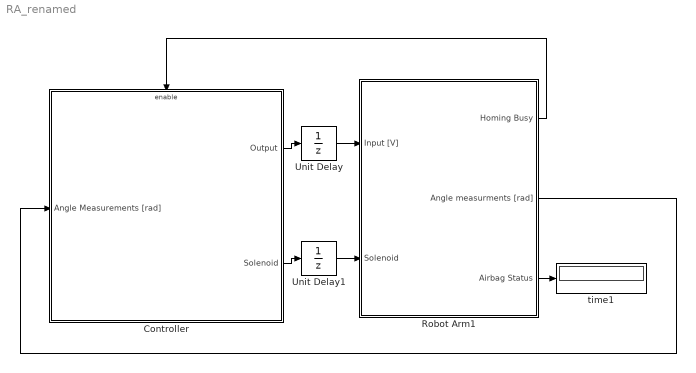
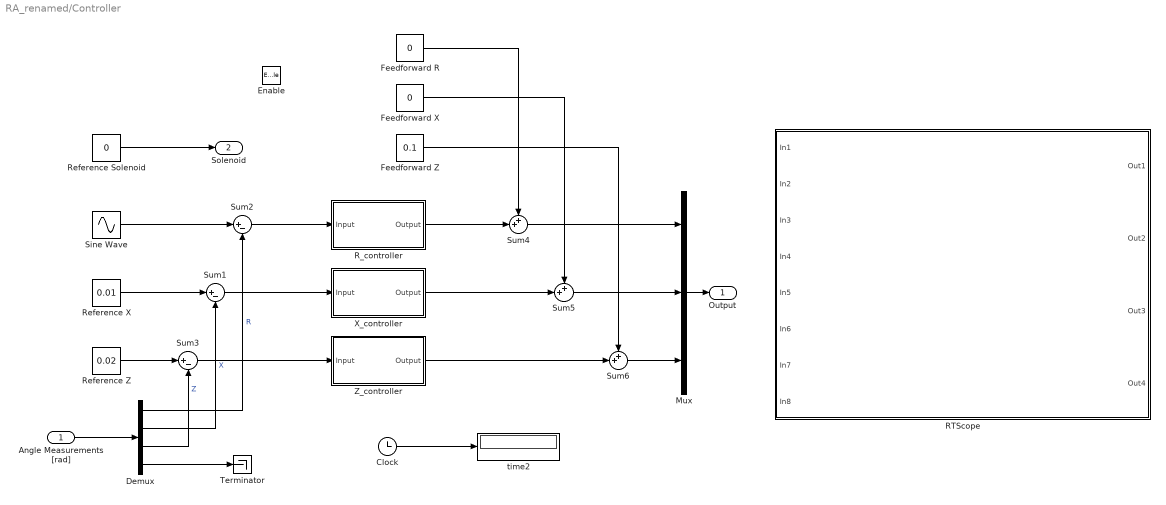
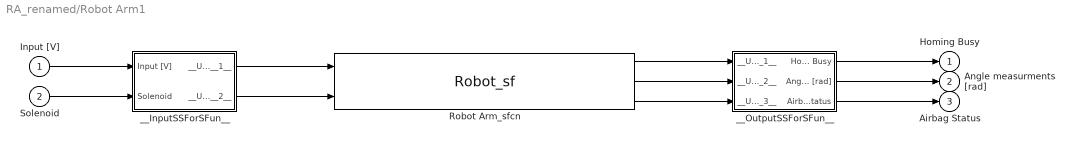
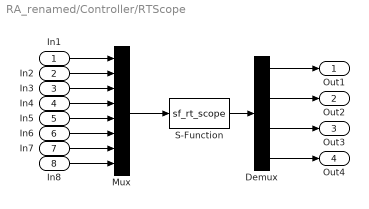
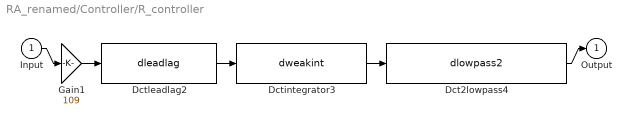
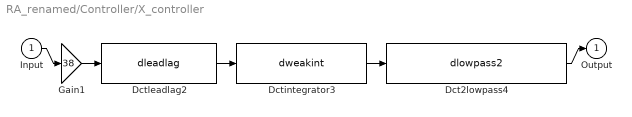
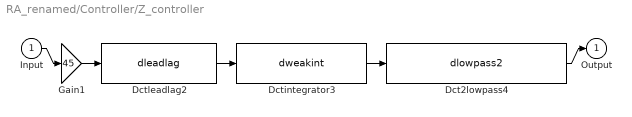
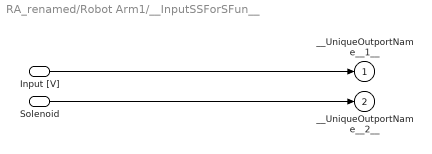
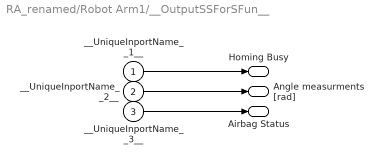
/*
 * RA_renamed.c
 *
 * Academic License - for use in teaching, academic research, and meeting
 * course requirements at degree granting institutions only.  Not for
 * government, commercial, or other organizational use.
 *
 * Code generation for model "RA_renamed".
 *
 * Model version              : 1.934
 * Simulink Coder version : 8.9 (R2015b) 13-Aug-2015
 * C source code generated on : Fri Apr  8 10:16:18 2016
 *
 * Target selection: ectarget.tlc
 * Note: GRT includes extra infrastructure and instrumentation for prototyping
 * Embedded hardware selection: 32-bit Generic
 * Code generation objectives: Unspecified
 * Validation result: Not run
 */

#include "RA_renamed.h"
#include "RA_renamed_private.h"
#include "RA_renamed_dt.h"
#undef S_FUNCTION_NAME
#if !defined(RTW_GENERATED_SFCN_TUNABLE_PRMS_Robot_sf)
#define RTW_GENERATED_SFCN_TUNABLE_PRMS_Robot_sf
#endif

#include "Robot_sf.h"

const real_T RA_renamed_RGND = 0.0;    /* real_T ground */

/* Block signals (auto storage) */
B_RA_renamed_T RA_renamed_B;

/* Block states (auto storage) */
DW_RA_renamed_T RA_renamed_DW;

/* Real-time model */
RT_MODEL_RA_renamed_T RA_renamed_M_;
RT_MODEL_RA_renamed_T *const RA_renamed_M = &RA_renamed_M_;

/* Model output function */
void RA_renamed_output(void)
{
  /* Reset subsysRan breadcrumbs */
  srClearBC(RA_renamed_DW.Controller_SubsysRanBC);

  /* UnitDelay: '<Root>/Unit Delay' */
  RA_renamed_B.UnitDelay[0] = RA_renamed_DW.UnitDelay_DSTATE[0];
  RA_renamed_B.UnitDelay[1] = RA_renamed_DW.UnitDelay_DSTATE[1];
  RA_renamed_B.UnitDelay[2] = RA_renamed_DW.UnitDelay_DSTATE[2];

  /* UnitDelay: '<Root>/Unit Delay1' */
  RA_renamed_B.UnitDelay1 = RA_renamed_DW.UnitDelay1_DSTATE;

  /* RTW Generated Level2 S-Function Block: '<S2>/Robot Arm_sfcn' (Robot_sf) */
  {
    SimStruct *rts = RA_renamed_M->childSfunctions[10];
    sfcnOutputs(rts, 0);
  }

  /* Outputs for Enabled SubSystem: '<Root>/Controller' incorporates:
   *  EnablePort: '<S1>/Enable'
   */
  if (RA_renamed_B.RobotArm_sfcn_o1 > 0.0) {
    if (!RA_renamed_DW.Controller_MODE) {
      RA_renamed_DW.Controller_MODE = true;
    }
  } else {
    if (RA_renamed_DW.Controller_MODE) {
      RA_renamed_DW.Controller_MODE = false;
    }
  }

  if (RA_renamed_DW.Controller_MODE) {
    /* Gain: '<S4>/Gain1' incorporates:
     *  Sin: '<S1>/Sine Wave'
     *  Sum: '<S1>/Sum2'
     */
    RA_renamed_B.Gain1 = ((sin(RA_renamed_P.SineWave_Freq *
      RA_renamed_M->Timing.t[0] + RA_renamed_P.SineWave_Phase) *
      RA_renamed_P.SineWave_Amp + RA_renamed_P.SineWave_Bias) -
                          RA_renamed_B.RobotArm_sfcn_o2[0]) *
      RA_renamed_P.Gain1_Gain;

    /* Level2 S-Function Block: '<S4>/Dctleadlag2' (dleadlag) */
    {
      SimStruct *rts = RA_renamed_M->childSfunctions[0];
      sfcnOutputs(rts, 1);
    }

    /* Level2 S-Function Block: '<S4>/Dctintegrator3' (dweakint) */
    {
      SimStruct *rts = RA_renamed_M->childSfunctions[1];
      sfcnOutputs(rts, 1);
    }

    /* Level2 S-Function Block: '<S4>/Dct2lowpass4' (dlowpass2) */
    {
      SimStruct *rts = RA_renamed_M->childSfunctions[2];
      sfcnOutputs(rts, 1);
    }

    /* Sum: '<S1>/Sum4' incorporates:
     *  Constant: '<S1>/Feedforward R'
     */
    RA_renamed_B.Sum4 = RA_renamed_P.FeedforwardR_Value +
      RA_renamed_B.Dct2lowpass4;

    /* Gain: '<S5>/Gain1' incorporates:
     *  Constant: '<S1>/Reference X'
     *  Sum: '<S1>/Sum1'
     */
    RA_renamed_B.Gain1_a = (RA_renamed_P.ReferenceX_Value -
      RA_renamed_B.RobotArm_sfcn_o2[1]) * RA_renamed_P.Gain1_Gain_c;

    /* Level2 S-Function Block: '<S5>/Dctleadlag2' (dleadlag) */
    {
      SimStruct *rts = RA_renamed_M->childSfunctions[3];
      sfcnOutputs(rts, 1);
    }

    /* Level2 S-Function Block: '<S5>/Dctintegrator3' (dweakint) */
    {
      SimStruct *rts = RA_renamed_M->childSfunctions[4];
      sfcnOutputs(rts, 1);
    }

    /* Level2 S-Function Block: '<S5>/Dct2lowpass4' (dlowpass2) */
    {
      SimStruct *rts = RA_renamed_M->childSfunctions[5];
      sfcnOutputs(rts, 1);
    }

    /* Sum: '<S1>/Sum5' incorporates:
     *  Constant: '<S1>/Feedforward X'
     */
    RA_renamed_B.Sum5 = RA_renamed_P.FeedforwardX_Value +
      RA_renamed_B.Dct2lowpass4_l;

    /* Gain: '<S6>/Gain1' incorporates:
     *  Constant: '<S1>/Reference Z'
     *  Sum: '<S1>/Sum3'
     */
    RA_renamed_B.Gain1_ak = (RA_renamed_P.ReferenceZ_Value -
      RA_renamed_B.RobotArm_sfcn_o2[2]) * RA_renamed_P.Gain1_Gain_d;

    /* Level2 S-Function Block: '<S6>/Dctleadlag2' (dleadlag) */
    {
      SimStruct *rts = RA_renamed_M->childSfunctions[6];
      sfcnOutputs(rts, 1);
    }

    /* Level2 S-Function Block: '<S6>/Dctintegrator3' (dweakint) */
    {
      SimStruct *rts = RA_renamed_M->childSfunctions[7];
      sfcnOutputs(rts, 1);
    }

    /* Level2 S-Function Block: '<S6>/Dct2lowpass4' (dlowpass2) */
    {
      SimStruct *rts = RA_renamed_M->childSfunctions[8];
      sfcnOutputs(rts, 1);
    }

    /* Sum: '<S1>/Sum6' incorporates:
     *  Constant: '<S1>/Feedforward Z'
     */
    RA_renamed_B.Sum6 = RA_renamed_P.FeedforwardZ_Value +
      RA_renamed_B.Dct2lowpass4_h;

    /* Constant: '<S1>/Reference Solenoid' */
    RA_renamed_B.ReferenceSolenoid = RA_renamed_P.ReferenceSolenoid_Value;

    /* Clock: '<S1>/Clock' */
    RA_renamed_B.Clock = RA_renamed_M->Timing.t[0];

    /* Level2 S-Function Block: '<S3>/S-Function' (sf_rt_scope) */
    {
      SimStruct *rts = RA_renamed_M->childSfunctions[9];
      sfcnOutputs(rts, 0);
    }

    srUpdateBC(RA_renamed_DW.Controller_SubsysRanBC);
  }

  /* End of Outputs for SubSystem: '<Root>/Controller' */
}

/* Model update function */
void RA_renamed_update(void)
{
  /* Update for UnitDelay: '<Root>/Unit Delay' */
  RA_renamed_DW.UnitDelay_DSTATE[0] = RA_renamed_B.Sum4;
  RA_renamed_DW.UnitDelay_DSTATE[1] = RA_renamed_B.Sum5;
  RA_renamed_DW.UnitDelay_DSTATE[2] = RA_renamed_B.Sum6;

  /* Update for UnitDelay: '<Root>/Unit Delay1' */
  RA_renamed_DW.UnitDelay1_DSTATE = RA_renamed_B.ReferenceSolenoid;

  /* RTW Generated Level2 S-Function Block: '<S2>/Robot Arm_sfcn' (Robot_sf) */
  {
    SimStruct *rts = RA_renamed_M->childSfunctions[10];
    sfcnUpdate(rts, 0);
    if (ssGetErrorStatus(rts) != (NULL))
      return;
  }

  /* Update absolute time for base rate */
  /* The "clockTick0" counts the number of times the code of this task has
   * been executed. The absolute time is the multiplication of "clockTick0"
   * and "Timing.stepSize0". Size of "clockTick0" ensures timer will not
   * overflow during the application lifespan selected.
   * Timer of this task consists of two 32 bit unsigned integers.
   * The two integers represent the low bits Timing.clockTick0 and the high bits
   * Timing.clockTickH0. When the low bit overflows to 0, the high bits increment.
   */
  if (!(++RA_renamed_M->Timing.clockTick0)) {
    ++RA_renamed_M->Timing.clockTickH0;
  }

  RA_renamed_M->Timing.t[0] = RA_renamed_M->Timing.clockTick0 *
    RA_renamed_M->Timing.stepSize0 + RA_renamed_M->Timing.clockTickH0 *
    RA_renamed_M->Timing.stepSize0 * 4294967296.0;

  {
    /* Update absolute timer for sample time: [0.000244140625s, 0.0s] */
    /* The "clockTick1" counts the number of times the code of this task has
     * been executed. The absolute time is the multiplication of "clockTick1"
     * and "Timing.stepSize1". Size of "clockTick1" ensures timer will not
     * overflow during the application lifespan selected.
     * Timer of this task consists of two 32 bit unsigned integers.
     * The two integers represent the low bits Timing.clockTick1 and the high bits
     * Timing.clockTickH1. When the low bit overflows to 0, the high bits increment.
     */
    if (!(++RA_renamed_M->Timing.clockTick1)) {
      ++RA_renamed_M->Timing.clockTickH1;
    }

    RA_renamed_M->Timing.t[1] = RA_renamed_M->Timing.clockTick1 *
      RA_renamed_M->Timing.stepSize1 + RA_renamed_M->Timing.clockTickH1 *
      RA_renamed_M->Timing.stepSize1 * 4294967296.0;
  }
}
